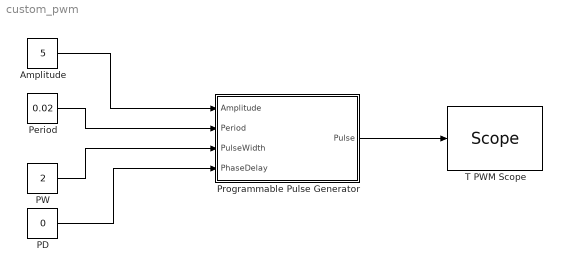
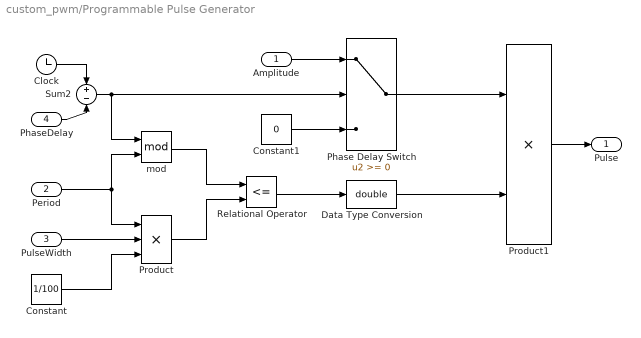
/*
 * custom_pwm.c
 *
 * Academic License - for use in teaching, academic research, and meeting
 * course requirements at degree granting institutions only.  Not for
 * government, commercial, or other organizational use.
 *
 * Code generation for model "custom_pwm".
 *
 * Model version              : 1.31
 * Simulink Coder version : 8.12 (R2017a) 16-Feb-2017
 * C source code generated on : Thu Feb 13 12:59:47 2020
 *
 * Target selection: slrt.tlc
 * Note: GRT includes extra infrastructure and instrumentation for prototyping
 * Embedded hardware selection: Generic->32-bit x86 compatible
 * Code generation objectives: Unspecified
 * Validation result: Not run
 */

#include "rt_logging_mmi.h"
#include "custom_pwm_capi.h"
#include "custom_pwm.h"
#include "custom_pwm_private.h"

/* Block signals (auto storage) */
B_custom_pwm_T custom_pwm_B;

/* Block states (auto storage) */
DW_custom_pwm_T custom_pwm_DW;

/* Real-time model */
RT_MODEL_custom_pwm_T custom_pwm_M_;
RT_MODEL_custom_pwm_T *const custom_pwm_M = &custom_pwm_M_;
real_T rt_modd_snf(real_T u0, real_T u1)
{
  real_T y;
  real_T q;
  boolean_T y_0;
  boolean_T y_1;
  y = u0;
  y_0 = ((!rtIsNaN(u0)) && (!rtIsInf(u0)));
  y_1 = ((!rtIsNaN(u1)) && (!rtIsInf(u1)));
  if (!(y_0 && y_1)) {
    if (u1 != 0.0) {
      y = (rtNaN);
    }
  } else if (u0 == 0.0) {
    y = u1 * 0.0;
  } else {
    if (u1 != 0.0) {
      y = fmod(u0, u1);
      y_0 = (y == 0.0);
      if ((!y_0) && (u1 > floor(u1))) {
        q = fabs(u0 / u1);
        y_0 = (fabs(q - floor(q + 0.5)) <= DBL_EPSILON * q);
      }

      if (y_0) {
        y = u1 * 0.0;
      } else {
        if ((u0 < 0.0) != (u1 < 0.0)) {
          y += u1;
        }
      }
    }
  }

  return y;
}

/* Model output function */
static void custom_pwm_output(void)
{
  /* S-Function (scblock): '<S2>/S-Function' */
  /* ok to acquire for <S2>/S-Function */
  custom_pwm_DW.SFunction_IWORK.AcquireOK = 1;

  /* Clock: '<S1>/Clock' */
  custom_pwm_B.Clock = custom_pwm_M->Timing.t[0];

  /* Sum: '<S1>/Sum2' incorporates:
   *  Constant: '<Root>/PD'
   */
  custom_pwm_B.Sum2 = custom_pwm_B.Clock - custom_pwm_P.PD_Value;

  /* Math: '<S1>/mod' incorporates:
   *  Constant: '<Root>/Period'
   */
  custom_pwm_B.mod = rt_modd_snf(custom_pwm_B.Sum2, custom_pwm_P.Period_Value);

  /* Product: '<S1>/Product' incorporates:
   *  Constant: '<Root>/PW'
   *  Constant: '<Root>/Period'
   *  Constant: '<S1>/Constant'
   */
  custom_pwm_B.Product = custom_pwm_P.Period_Value * custom_pwm_P.PW_Value *
    custom_pwm_P.Constant_Value;

  /* RelationalOperator: '<S1>/Relational Operator' */
  custom_pwm_B.RelationalOperator = (custom_pwm_B.mod <= custom_pwm_B.Product);

  /* DataTypeConversion: '<S1>/Data Type Conversion' */
  custom_pwm_B.DataTypeConversion = custom_pwm_B.RelationalOperator;

  /* Switch: '<S1>/Phase Delay Switch' incorporates:
   *  Constant: '<Root>/Amplitude'
   *  Constant: '<S1>/Constant1'
   */
  if (custom_pwm_B.Sum2 >= custom_pwm_P.PhaseDelaySwitch_Threshold) {
    custom_pwm_B.PhaseDelaySwitch = custom_pwm_P.Amplitude_Value;
  } else {
    custom_pwm_B.PhaseDelaySwitch = custom_pwm_P.Constant1_Value;
  }

  /* End of Switch: '<S1>/Phase Delay Switch' */

  /* Product: '<S1>/Product1' */
  custom_pwm_B.Product1 = custom_pwm_B.PhaseDelaySwitch *
    custom_pwm_B.DataTypeConversion;
}

/* Model update function */
static void custom_pwm_update(void)
{
  /* Update absolute time for base rate */
  /* The "clockTick0" counts the number of times the code of this task has
   * been executed. The absolute time is the multiplication of "clockTick0"
   * and "Timing.stepSize0". Size of "clockTick0" ensures timer will not
   * overflow during the application lifespan selected.
   * Timer of this task consists of two 32 bit unsigned integers.
   * The two integers represent the low bits Timing.clockTick0 and the high bits
   * Timing.clockTickH0. When the low bit overflows to 0, the high bits increment.
   */
  if (!(++custom_pwm_M->Timing.clockTick0)) {
    ++custom_pwm_M->Timing.clockTickH0;
  }

  custom_pwm_M->Timing.t[0] = custom_pwm_M->Timing.clockTick0 *
    custom_pwm_M->Timing.stepSize0 + custom_pwm_M->Timing.clockTickH0 *
    custom_pwm_M->Timing.stepSize0 * 4294967296.0;

  {
    /* Update absolute timer for sample time: [0.0002s, 0.0s] */
    /* The "clockTick1" counts the number of times the code of this task has
     * been executed. The absolute time is the multiplication of "clockTick1"
     * and "Timing.stepSize1". Size of "clockTick1" ensures timer will not
     * overflow during the application lifespan selected.
     * Timer of this task consists of two 32 bit unsigned integers.
     * The two integers represent the low bits Timing.clockTick1 and the high bits
     * Timing.clockTickH1. When the low bit overflows to 0, the high bits increment.
     */
    if (!(++custom_pwm_M->Timing.clockTick1)) {
      ++custom_pwm_M->Timing.clockTickH1;
    }

    custom_pwm_M->Timing.t[1] = custom_pwm_M->Timing.clockTick1 *
      custom_pwm_M->Timing.stepSize1 + custom_pwm_M->Timing.clockTickH1 *
      custom_pwm_M->Timing.stepSize1 * 4294967296.0;
  }
}
